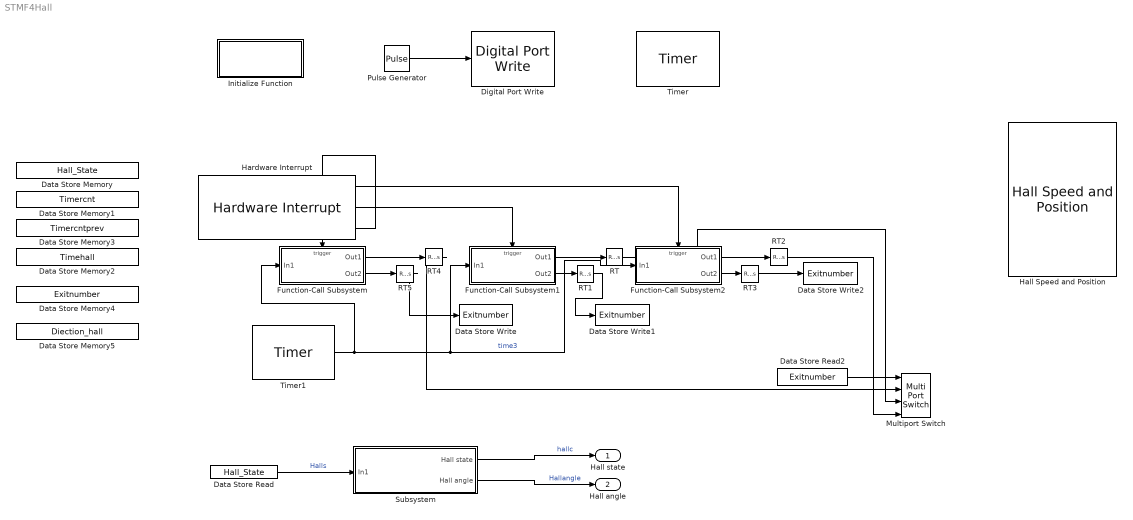
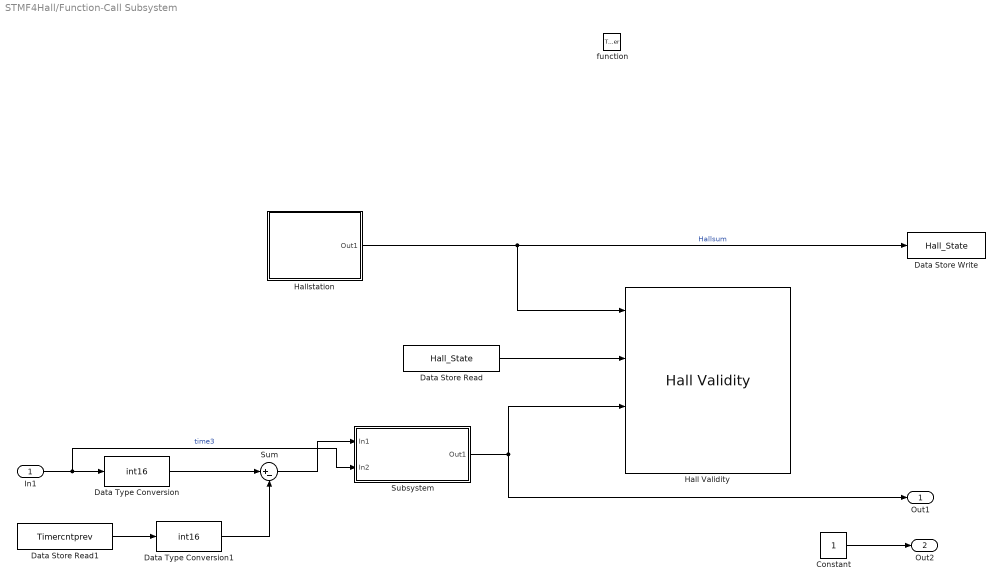
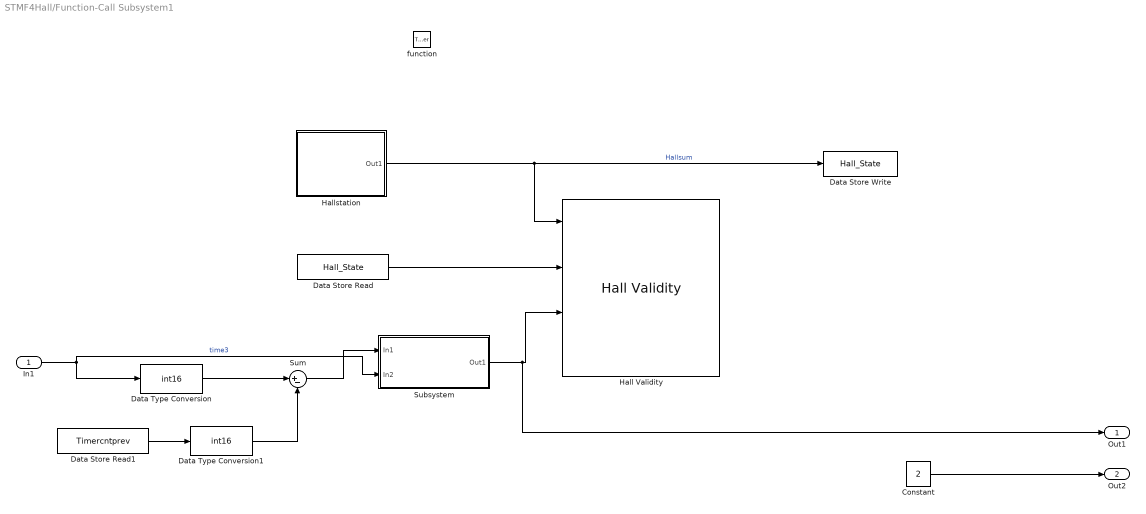
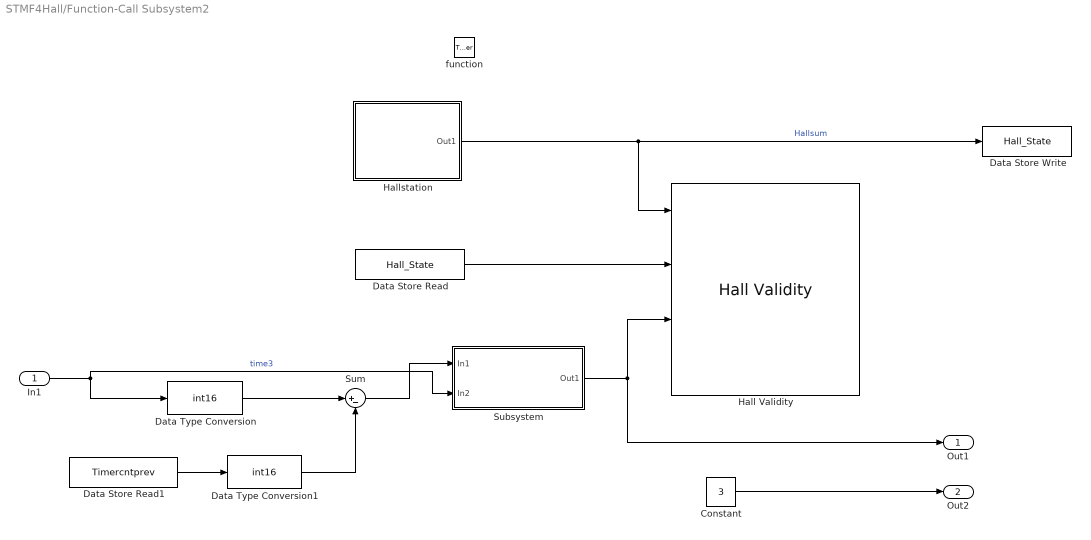
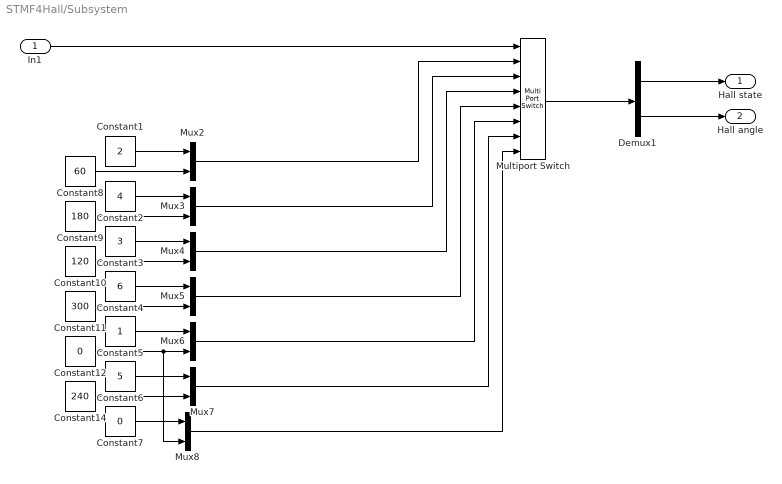
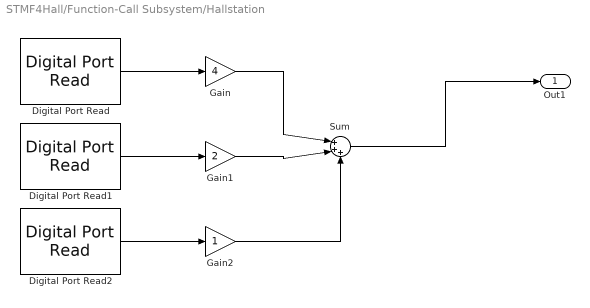
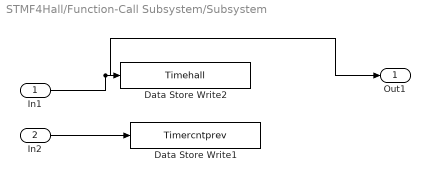
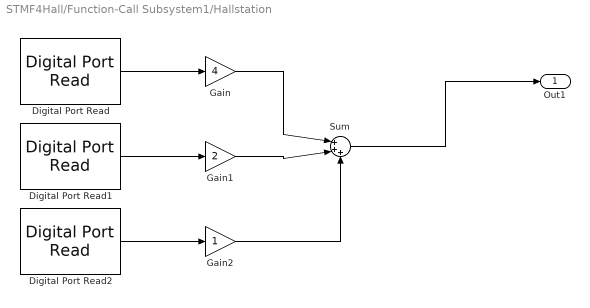
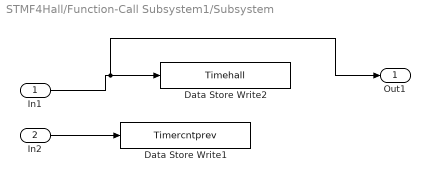
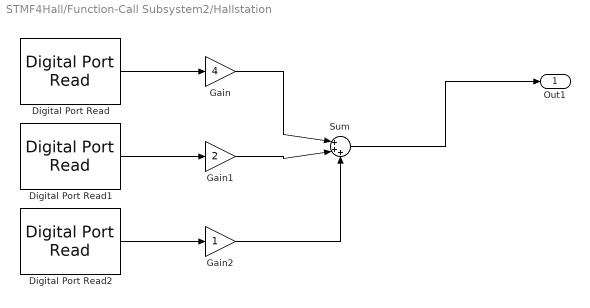
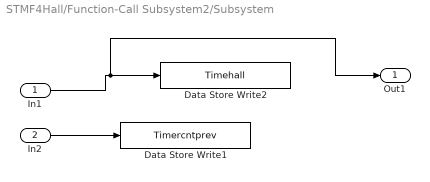
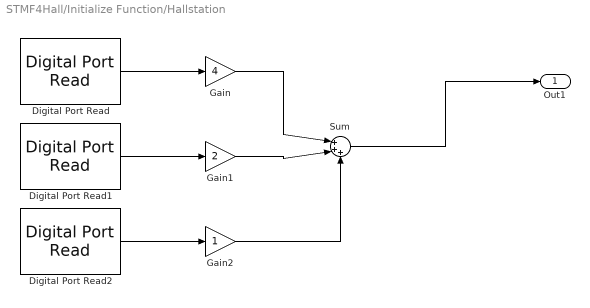
== system STMF4Hall/Initialize Function ==
  Data Store Write : DataStoreWrite  DataStoreName=Hall_State  IndexOptions=Index vector (dialog)  Indices=1  OutputSizes=1
  Event Listener : EventListener  DisableCoverage=on  EventName=reset
  Hallstation : Subsystem
  wires:
  Hallstation/1(Out1) -> Data Store Write/1

/*
 * File: STMF4Hall.c
 *
 * Code generated for Simulink model 'STMF4Hall'.
 *
 * Model version                  : 1.16
 * Simulink Coder version         : 24.1 (R2024a) 19-Nov-2023
 * C/C++ source code generated on : Mon Sep 30 14:28:23 2024
 *
 * Target selection: ert.tlc
 * Embedded hardware selection: ARM Compatible->ARM Cortex-M
 * Code generation objectives: Unspecified
 * Validation result: Not run
 */

#include "STMF4Hall.h"
#include "rtwtypes.h"
#include "STMF4Hall_types.h"
#include "STMF4Hall_private.h"
#include "stm_timer_ll.h"
#include "xcp.h"
#include "ext_mode.h"

extmodeSimulationTime_T currentTime = (extmodeSimulationTime_T) 0;

/* Block signals (default storage) */
B_STMF4Hall_T STMF4Hall_B;

/* Block states (default storage) */
DW_STMF4Hall_T STMF4Hall_DW;

/* External outputs (root outports fed by signals with default storage) */
ExtY_STMF4Hall_T STMF4Hall_Y;

/* Real-time model */
static RT_MODEL_STMF4Hall_T STMF4Hall_M_;
RT_MODEL_STMF4Hall_T *const STMF4Hall_M = &STMF4Hall_M_;

/* Forward declaration for local functions */
static void STMF4Hall_SystemCore_setup_o(stm32cube_blocks_TimerBlock_S_T *obj);
static void STMF4Hall_SystemCore_setup(stm32cube_blocks_TimerBlock_S_T *obj);
static void rate_monotonic_scheduler(void);

/*
 * Set which subrates need to run this base step (base rate always runs).
 * This function must be called prior to calling the model step function
 * in order to remember which rates need to run this base step.  The
 * buffering of events allows for overlapping preemption.
 */
void STMF4Hall_SetEventsForThisBaseStep(boolean_T *eventFlags)
{
  /* Task runs when its counter is zero, computed via rtmStepTask macro */
  eventFlags[1] = ((boolean_T)rtmStepTask(STMF4Hall_M, 1));
}

/*
 *         This function updates active task flag for each subrate
 *         and rate transition flags for tasks that exchange data.
 *         The function assumes rate-monotonic multitasking scheduler.
 *         The function must be called at model base rate so that
 *         the generated code self-manages all its subrates and rate
 *         transition flags.
 */
static void rate_monotonic_scheduler(void)
{
  /* Compute which subrates run during the next base time step.  Subrates
   * are an integer multiple of the base rate counter.  Therefore, the subtask
   * counter is reset when it reaches its limit (zero means run).
   */
  (STMF4Hall_M->Timing.TaskCounters.TID[1])++;
  if ((STMF4Hall_M->Timing.TaskCounters.TID[1]) > 1999) {/* Sample time: [0.1s, 0.0s] */
    STMF4Hall_M->Timing.TaskCounters.TID[1] = 0;
  }
}

/*
 * Output and update for action system:
 *    '<S104>/Hall Value of 1'
 *    '<S104>/Hall Value of 2'
 *    '<S104>/Hall Value of 3'
 *    '<S104>/Hall Value of 4'
 *    '<S104>/Hall Value of 5'
 *    '<S104>/Hall Value of 6'
 *    '<S104>/Hall Value of 7'
 *    '<S103>/Hall Value of 1'
 *    '<S103>/Hall Value of 2'
 *    '<S103>/Hall Value of 3'
 *    ...
 */
void STMF4Hall_HallValueof1(real32_T *rty_position, P_HallValueof1_STMF4Hall_T
  *localP)
{
  /* SignalConversion generated from: '<S114>/position' incorporates:
   *  Constant: '<S114>/Constant'
   */
  *rty_position = localP->Constant_Value;
}

/*
 * Output and update for action system:
 *    '<S66>/If Action Subsystem6'
 *    '<S66>/If Action Subsystem7'
 *    '<S41>/If Action Subsystem6'
 *    '<S41>/If Action Subsystem7'
 *    '<S16>/If Action Subsystem6'
 *    '<S16>/If Action Subsystem7'
 */
void STMF4Hal_IfActionSubsystem6(int16_T *rty_direction, uint16_T
  *rty_sequence_check, P_IfActionSubsystem6_STMF4Hal_T *localP)
{
  /* SignalConversion generated from: '<S73>/direction' incorporates:
   *  Constant: '<S73>/Constant'
   */
  *rty_direction = localP->Constant_Value;

  /* SignalConversion generated from: '<S73>/sequence_check' incorporates:
   *  Constant: '<S73>/Constant1'
   */
  *rty_sequence_check = localP->Constant1_Value;
}

/*
 * Output and update for action system:
 *    '<S66>/If Action Subsystem'
 *    '<S66>/If Action Subsystem1'
 *    '<S66>/If Action Subsystem2'
 *    '<S66>/If Action Subsystem3'
 *    '<S66>/If Action Subsystem4'
 *    '<S66>/If Action Subsystem5'
 *    '<S41>/If Action Subsystem'
 *    '<S41>/If Action Subsystem1'
 *    '<S41>/If Action Subsystem2'
 *    '<S41>/If Action Subsystem3'
 *    ...
 */
void STMF4Hall_IfActionSubsystem(uint16_T *rty_Out1, uint16_T *rty_Out2,
  P_IfActionSubsystem_STMF4Hall_T *localP)
{
  /* SignalConversion generated from: '<S67>/Out1' incorporates:
   *  Constant: '<S67>/previous'
   */
  *rty_Out1 = localP->previous_Value;

  /* SignalConversion generated from: '<S67>/Out2' incorporates:
   *  Constant: '<S67>/next'
   */
  *rty_Out2 = localP->next_Value;
}

/*
 * System initialize for action system:
 *    '<S64>/Valid Halls'
 *    '<S39>/Valid Halls'
 *    '<S14>/Valid Halls'
 */
void STMF4Hall_ValidHalls_Init(B_ValidHalls_STMF4Hall_T *localB,
  P_ValidHalls_STMF4Hall_T *localP)
{
  /* SystemInitialize for Merge: '<S66>/Merge' */
  localB->Merge = localP->Merge_InitialOutput;

  /* SystemInitialize for Merge: '<S66>/Merge1' */
  localB->Merge1 = localP->Merge1_InitialOutput;

  /* SystemInitialize for Merge: '<S66>/Merge2' */
  localB->Merge2 = localP->Merge2_InitialOutput;

  /* SystemInitialize for Merge: '<S66>/Merge3' */
  localB->Merge3 = localP->Merge3_InitialOutput;
}

/*
 * Output and update for action system:
 *    '<S64>/Valid Halls'
 *    '<S39>/Valid Halls'
 *    '<S14>/Valid Halls'
 */
void STMF4Hall_ValidHalls(uint16_T rtu_hallReading, uint16_T rtu_previousState,
  int16_T rtu_previous_direction, boolean_T *rty_directional_speed_valid_fla,
  int16_T *rty_direction, uint16_T *rty_inValidHall, B_ValidHalls_STMF4Hall_T
  *localB, DW_ValidHalls_STMF4Hall_T *localDW, P_ValidHalls_STMF4Hall_T *localP)
{
  /* SwitchCase: '<S66>/Switch Case' */
  switch (rtu_hallReading) {
   case 5:
    /* Outputs for IfAction SubSystem: '<S66>/If Action Subsystem' incorporates:
     *  ActionPort: '<S67>/Action Port'
     */
    STMF4Hall_IfActionSubsystem(&localB->Merge, &localB->Merge1,
      &localP->IfActionSubsystem);

    /* End of Outputs for SubSystem: '<S66>/If Action Subsystem' */
    break;

   case 4:
    /* Outputs for IfAction SubSystem: '<S66>/If Action Subsystem1' incorporates:
     *  ActionPort: '<S68>/Action Port'
     */
    STMF4Hall_IfActionSubsystem(&localB->Merge, &localB->Merge1,
      &localP->IfActionSubsystem1);

    /* End of Outputs for SubSystem: '<S66>/If Action Subsystem1' */
    break;

   case 6:
    /* Outputs for IfAction SubSystem: '<S66>/If Action Subsystem2' incorporates:
     *  ActionPort: '<S69>/Action Port'
     */
    STMF4Hall_IfActionSubsystem(&localB->Merge, &localB->Merge1,
      &localP->IfActionSubsystem2);

    /* End of Outputs for SubSystem: '<S66>/If Action Subsystem2' */
    break;

   case 2:
    /* Outputs for IfAction SubSystem: '<S66>/If Action Subsystem3' incorporates:
     *  ActionPort: '<S70>/Action Port'
     */
    STMF4Hall_IfActionSubsystem(&localB->Merge, &localB->Merge1,
      &localP->IfActionSubsystem3);

    /* End of Outputs for SubSystem: '<S66>/If Action Subsystem3' */
    break;

   case 3:
    /* Outputs for IfAction SubSystem: '<S66>/If Action Subsystem4' incorporates:
     *  ActionPort: '<S71>/Action Port'
     */
    STMF4Hall_IfActionSubsystem(&localB->Merge, &localB->Merge1,
      &localP->IfActionSubsystem4);

    /* End of Outputs for SubSystem: '<S66>/If Action Subsystem4' */
    break;

   case 1:
    /* Outputs for IfAction SubSystem: '<S66>/If Action Subsystem5' incorporates:
     *  ActionPort: '<S72>/Action Port'
     */
    STMF4Hall_IfActionSubsystem(&localB->Merge, &localB->Merge1,
      &localP->IfActionSubsystem5);

    /* End of Outputs for SubSystem: '<S66>/If Action Subsystem5' */
    break;

   default:
    /* Update for IfAction SubSystem: '<S66>/Switch Case Action Subsystem' incorporates:
     *  ActionPort: '<S76>/Action Port'
     */
    /* Update for SwitchCase: '<S66>/Switch Case' */
    localDW->SwitchCaseActionSubsystem_Subsy = 4;

    /* End of Update for SubSystem: '<S66>/Switch Case Action Subsystem' */
    break;
  }

  /* End of SwitchCase: '<S66>/Switch Case' */

  /* If: '<S66>/If' */
  if (rtu_previousState == localB->Merge) {
    /* Outputs for IfAction SubSystem: '<S66>/If Action Subsystem6' incorporates:
     *  ActionPort: '<S73>/Action Port'
     */
    STMF4Hal_IfActionSubsystem6(&localB->Merge2, &localB->Merge3,
      &localP->IfActionSubsystem6);

    /* End of Outputs for SubSystem: '<S66>/If Action Subsystem6' */
  } else if (rtu_previousState == localB->Merge1) {
    /* Outputs for IfAction SubSystem: '<S66>/If Action Subsystem7' incorporates:
     *  ActionPort: '<S74>/Action Port'
     */
    STMF4Hal_IfActionSubsystem6(&localB->Merge2, &localB->Merge3,
      &localP->IfActionSubsystem7);

    /* End of Outputs for SubSystem: '<S66>/If Action Subsystem7' */
  } else {
    /* Outputs for IfAction SubSystem: '<S66>/If Action Subsystem8' incorporates:
     *  ActionPort: '<S75>/Action Port'
     */
    /* Merge: '<S66>/Merge3' incorporates:
     *  Constant: '<S75>/Constant'
     *  SignalConversion generated from: '<S75>/sequence_check'
     */
    localB->Merge3 = localP->Constant_Value;

    /* End of Outputs for SubSystem: '<S66>/If Action Subsystem8' */

    /* Update for IfAction SubSystem: '<S66>/If Action Subsystem8' incorporates:
     *  ActionPort: '<S75>/Action Port'
     */
    /* Update for If: '<S66>/If' */
    localDW->IfActionSubsystem8_SubsysRanBC = 4;

    /* End of Update for SubSystem: '<S66>/If Action Subsystem8' */
  }

  /* End of If: '<S66>/If' */

  /* SignalConversion: '<S66>/Signal Conversion' */
  *rty_inValidHall = localB->Merge3;

  /* SignalConversion: '<S66>/Signal Conversion1' */
  *rty_direction = localB->Merge2;

  /* Switch: '<S66>/Switch' incorporates:
   *  Constant: '<S66>/Constant'
   *  RelationalOperator: '<S66>/Relational Operator'
   */
  if (localB->Merge3 != 0) {
    *rty_directional_speed_valid_fla = localP->Constant_Value_j;
  } else {
    *rty_directional_speed_valid_fla = (localB->Merge2 == rtu_previous_direction);
  }

  /* End of Switch: '<S66>/Switch' */
}

/*
 * Output and update for action system:
 *    '<S64>/Bad hall (glitch or wrong connection)'
 *    '<S39>/Bad hall (glitch or wrong connection)'
 *    '<S14>/Bad hall (glitch or wrong connection)'
 */
void Badhallglitchorwrongconnect(int16_T rtu_previous_direction, uint16_T
  *rty_inValidHall, int16_T *rty_direction, boolean_T
  *rty_directional_speed_valid_fla, P_Badhallglitchorwrongconnect_T *localP)
{
  /* SignalConversion generated from: '<S65>/inValidHall' incorporates:
   *  Constant: '<S65>/Constant'
   */
  *rty_inValidHall = localP->Constant_Value;

  /* SignalConversion: '<S65>/Signal Conversion' */
  *rty_direction = rtu_previous_direction;

  /* SignalConversion generated from: '<S65>/directional_speed_valid_flag' incorporates:
   *  Constant: '<S65>/Constant1'
   */
  *rty_directional_speed_valid_fla = localP->Constant1_Value;
}

static void STMF4Hall_SystemCore_setup_o(stm32cube_blocks_TimerBlock_S_T *obj)
{
  TIM_Type_T b;
  boolean_T isSlaveModeTriggerEnabled;

  /* Start for MATLABSystem: '<Root>/Timer1' */
  obj->isInitialized = 1;
  b.PeripheralPtr = TIM3;
  b.isCenterAlignedMode = false;

  /* Start for MATLABSystem: '<Root>/Timer1' */
  b.repetitionCounter = 0U;
  obj->TimerHandle = Timer_Handle_Init(&b);
  enableTimerInterrupts(obj->TimerHandle, 0);
  isSlaveModeTriggerEnabled = isSlaveTriggerModeEnabled(obj->TimerHandle);
  if (!isSlaveModeTriggerEnabled) {
    /* Start for MATLABSystem: '<Root>/Timer1' */
    enableCounter(obj->TimerHandle, false);
  }

  obj->isSetupComplete = true;
}

static void STMF4Hall_SystemCore_setup(stm32cube_blocks_TimerBlock_S_T *obj)
{
  TIM_Type_T b;
  boolean_T isSlaveModeTriggerEnabled;

  /* Start for MATLABSystem: '<Root>/Timer' */
  obj->isInitialized = 1;
  b.PeripheralPtr = TIM2;
  b.isCenterAlignedMode = false;

  /* Start for MATLABSystem: '<Root>/Timer' */
  b.repetitionCounter = 0U;
  obj->TimerHandle = Timer_Handle_Init(&b);
  enableTimerInterrupts(obj->TimerHandle, 0);
  isSlaveModeTriggerEnabled = isSlaveTriggerModeEnabled(obj->TimerHandle);
  if (!isSlaveModeTriggerEnabled) {
    /* Start for MATLABSystem: '<Root>/Timer' */
    enableCounter(obj->TimerHandle, false);
  }

  obj->isSetupComplete = true;
}

/* Model step function for TID0 */
void STMF4Hall_step0(void)             /* Sample time: [5.0E-5s, 0.0s] */
{
  real32_T rtb_Merge1;
  int16_T rtb_RT;
  int16_T rtb_RT4;
  uint16_T Switch;
  uint16_T tmp;
  boolean_T OR;

  {                                    /* Sample time: [5.0E-5s, 0.0s] */
    rate_monotonic_scheduler();
  }

  /* Reset subsysRan breadcrumbs */
  srClearBC(STMF4Hall_DW.IfActionSubsystem_SubsysRanBC);

  /* Reset subsysRan breadcrumbs */
  srClearBC(STMF4Hall_DW.IfActionSubsystem1_SubsysRanBC);

  /* Reset subsysRan breadcrumbs */
  srClearBC(STMF4Hall_DW.HallValueof1.HallValueof1_SubsysRanBC);

  /* Reset subsysRan breadcrumbs */
  srClearBC(STMF4Hall_DW.veDirection_SubsysRanBC_c);

  /* Reset subsysRan breadcrumbs */
  srClearBC(STMF4Hall_DW.veDirection_SubsysRanBC);

  /* Reset subsysRan breadcrumbs */
  srClearBC(STMF4Hall_DW.second_order_SubsysRanBC);

  /* Reset subsysRan breadcrumbs */
  srClearBC(STMF4Hall_DW.first_order_SubsysRanBC);

  /* Reset subsysRan breadcrumbs */
  srClearBC(STMF4Hall_DW.Subsystem1_SubsysRanBC);

  /* Reset subsysRan breadcrumbs */
  srClearBC(STMF4Hall_DW.SpeedanddirectionarevalidUsespe);

  /* Reset subsysRan breadcrumbs */
  srClearBC(STMF4Hall_DW.SpeedanddirectionarenotvalidPos);

  /* DataStoreRead: '<Root>/Data Store Read' */
  STMF4Hall_B.Halls = STMF4Hall_DW.Hall_State;

  /* MultiPortSwitch: '<S8>/Multiport Switch' */
  switch (STMF4Hall_B.Halls) {
   case 1:
    /* MultiPortSwitch: '<S8>/Multiport Switch' incorporates:
     *  Constant: '<S8>/Constant1'
     *  Constant: '<S8>/Constant8'
     */
    STMF4Hall_B.MultiportSwitch[0] = STMF4Hall_P.Constant1_Value;
    STMF4Hall_B.MultiportSwitch[1] = STMF4Hall_P.Constant8_Value;
    break;

   case 2:
    /* MultiPortSwitch: '<S8>/Multiport Switch' incorporates:
     *  Constant: '<S8>/Constant2'
     *  Constant: '<S8>/Constant9'
     */
    STMF4Hall_B.MultiportSwitch[0] = STMF4Hall_P.Constant2_Value;
    STMF4Hall_B.MultiportSwitch[1] = STMF4Hall_P.Constant9_Value;
    break;

   case 3:
    /* MultiPortSwitch: '<S8>/Multiport Switch' incorporates:
     *  Constant: '<S8>/Constant10'
     *  Constant: '<S8>/Constant3'
     */
    STMF4Hall_B.MultiportSwitch[0] = STMF4Hall_P.Constant3_Value;
    STMF4Hall_B.MultiportSwitch[1] = STMF4Hall_P.Constant10_Value;
    break;

   case 4:
    /* MultiPortSwitch: '<S8>/Multiport Switch' incorporates:
     *  Constant: '<S8>/Constant11'
     *  Constant: '<S8>/Constant4'
     */
    STMF4Hall_B.MultiportSwitch[0] = STMF4Hall_P.Constant4_Value;
    STMF4Hall_B.MultiportSwitch[1] = STMF4Hall_P.Constant11_Value;
    break;

   case 5:
    /* MultiPortSwitch: '<S8>/Multiport Switch' incorporates:
     *  Constant: '<S8>/Constant12'
     *  Constant: '<S8>/Constant5'
     */
    STMF4Hall_B.MultiportSwitch[0] = STMF4Hall_P.Constant5_Value;
    STMF4Hall_B.MultiportSwitch[1] = STMF4Hall_P.Constant12_Value;
    break;

   case 6:
    /* MultiPortSwitch: '<S8>/Multiport Switch' incorporates:
     *  Constant: '<S8>/Constant14'
     *  Constant: '<S8>/Constant6'
     */
    STMF4Hall_B.MultiportSwitch[0] = STMF4Hall_P.Constant6_Value;
    STMF4Hall_B.MultiportSwitch[1] = STMF4Hall_P.Constant14_Value;
    break;

   default:
    /* MultiPortSwitch: '<S8>/Multiport Switch' incorporates:
     *  Constant: '<S8>/Constant12'
     *  Constant: '<S8>/Constant7'
     */
    STMF4Hall_B.MultiportSwitch[0] = STMF4Hall_P.Constant7_Value;
    STMF4Hall_B.MultiportSwitch[1] = STMF4Hall_P.Constant12_Value;
    break;
  }

  /* End of MultiPortSwitch: '<S8>/Multiport Switch' */

  /* Outport: '<Root>/Hall state' */
  STMF4Hall_Y.Hallstate = STMF4Hall_B.MultiportSwitch[0];

  /* Outport: '<Root>/Hall angle' */
  STMF4Hall_Y.Hallangle = STMF4Hall_B.MultiportSwitch[1];

  /* RateTransition: '<Root>/RT4' */
  rtb_RT4 = STMF4Hall_B.Sum;

  /* RateTransition: '<Root>/RT' */
  rtb_RT = STMF4Hall_B.Sum_p;

  /* RateTransition: '<Root>/RT2' */
  STMF4Hall_B.gethalltimer = STMF4Hall_B.Sum_b;

  /* MultiPortSwitch: '<Root>/Multiport Switch' incorporates:
   *  RateTransition: '<Root>/RT3'
   */
  switch ((int32_T)STMF4Hall_B.OutportBufferForOut2_e2) {
   case 1:
    /* RateTransition: '<Root>/RT2' incorporates:
     *  MultiPortSwitch: '<Root>/Multiport Switch'
     */
    STMF4Hall_B.gethalltimer = rtb_RT4;
    break;

   case 2:
    /* RateTransition: '<Root>/RT2' incorporates:
     *  MultiPortSwitch: '<Root>/Multiport Switch'
     */
    STMF4Hall_B.gethalltimer = rtb_RT;
    break;
  }

  /* End of MultiPortSwitch: '<Root>/Multiport Switch' */
  /* MATLABSystem: '<Root>/Timer1' */
  STMF4Hall_B.time3_k = getTimerCounterValue(STMF4Hall_DW.obj.TimerHandle);

  /* RateTransition generated from: '<Root>/Function-Call Subsystem1' */
  STMF4Hall_DW.TmpRTBAtFunctionCallSubsystem1I = STMF4Hall_B.time3_k;

  /* RateTransition generated from: '<Root>/Function-Call Subsystem2' */
  STMF4Hall_DW.TmpRTBAtFunctionCallSubsystem2I = STMF4Hall_B.time3_k;

  /* RateTransition generated from: '<Root>/Function-Call Subsystem' */
  STMF4Hall_DW.time3_Buffer0 = STMF4Hall_B.time3_k;

  /* Switch: '<S86>/Switch' incorporates:
   *  Constant: '<S86>/Order'
   */
  if (STMF4Hall_P.Order_Value > STMF4Hall_P.Switch_Threshold) {
    /* Switch: '<S86>/Switch' */
    Switch = 0U;
  } else {
    /* Switch: '<S86>/Switch' */
    Switch = STMF4Hall_P.Order_Value;
  }

  /* End of Switch: '<S86>/Switch' */

  /* Delay: '<S86>/validityDelay' incorporates:
   *  Delay: '<S86>/speedCountDelay'
   */
  if (Switch != 0) {
    /* Delay: '<S86>/validityDelay' */
    STMF4Hall_B.validityDelay = STMF4Hall_DW.validityDelay_DSTATE;
  }

  /* End of Delay: '<S86>/validityDelay' */

  /* Logic: '<S87>/OR' incorporates:
   *  Delay: '<S87>/Delay One Step1'
   */
  OR = STMF4Hall_DW.DelayOneStep1_DSTATE;

  /* Delay: '<S87>/Delay One Step' incorporates:
   *  Delay: '<S87>/Delay One Step1'
   *  Logic: '<S87>/OR'
   */
  if (STMF4Hall_DW.DelayOneStep1_DSTATE) {
    /* Delay: '<S87>/Delay One Step' */
    STMF4Hall_B.DelayOneStep = STMF4Hall_DW.DelayOneStep_DSTATE;
  }

  /* End of Delay: '<S87>/Delay One Step' */

  /* RelationalOperator: '<S91>/Compare' incorporates:
   *  Constant: '<S91>/Constant'
   *  Delay: '<S87>/Delay One Step1'
   */
  STMF4Hall_DW.DelayOneStep1_DSTATE = (STMF4Hall_B.DelayOneStep >
    STMF4Hall_P.Constant_Value_np);

  /* Switch: '<S90>/watchdog check' incorporates:
   *  Constant: '<S90>/Constant'
   *  Delay: '<S87>/Delay One Step1'
   */
  if (STMF4Hall_DW.DelayOneStep1_DSTATE) {
    /* Switch: '<S90>/speed check' incorporates:
     *  Constant: '<S90>/Constant'
     *  Logic: '<S86>/Logical Operator'
     *  MinMax: '<S90>/Max'
     */
    if (STMF4Hall_P.speedcheck_Threshold <= 0U) {
      tmp = STMF4Hall_P.Constant_Value_m;
    } else {
      tmp = STMF4Hall_B.validityDelay;
    }

    /* End of Switch: '<S90>/speed check' */
  } else {
    tmp = STMF4Hall_P.Constant_Value_m;
  }

  /* If: '<S5>/If' incorporates:
   *  Constant: '<S89>/PositionEnable'
   *  Switch: '<S90>/watchdog check'
   */
  if (tmp != 0) {
    /* Outputs for IfAction SubSystem: '<S5>/Speed and direction are valid Use speed to extrapolate position' incorporates:
     *  ActionPort: '<S89>/Action Port'
     */
    /* Update for IfAction SubSystem: '<S89>/If Action Subsystem1' incorporates:
     *  ActionPort: '<S101>/Action Port'
     */
    /* Update for If: '<S89>/If' */
    srUpdateBC(STMF4Hall_DW.IfActionSubsystem1_SubsysRanBC);

    /* End of Update for SubSystem: '<S89>/If Action Subsystem1' */

    /* Outputs for Enabled SubSystem: '<S89>/Subsystem1' incorporates:
     *  EnablePort: '<S102>/Enable'
     */
    if (STMF4Hall_P.PositionEnable_Value > 0) {
      /* If: '<S102>/If1' incorporates:
       *  Constant: '<S102>/Constant'
       */
      if (STMF4Hall_P.Constant_Value > 1.0) {
        /* Update for IfAction SubSystem: '<S102>/second_order' incorporates:
         *  ActionPort: '<S106>/Action Port'
         */
        /* Update for If: '<S102>/If1' */
        srUpdateBC(STMF4Hall_DW.second_order_SubsysRanBC);

        /* End of Update for SubSystem: '<S102>/second_order' */
      } else {
        /* Update for IfAction SubSystem: '<S102>/first_order' incorporates:
         *  ActionPort: '<S105>/Action Port'
         */
        /* Update for If: '<S102>/If1' */
        srUpdateBC(STMF4Hall_DW.first_order_SubsysRanBC);

        /* End of Update for SubSystem: '<S102>/first_order' */
      }

      /* End of If: '<S102>/If1' */

      /* Outputs for IfAction SubSystem: '<S102>/-ve Direction' incorporates:
       *  ActionPort: '<S104>/Action Port'
       */
      /* Outputs for IfAction SubSystem: '<S104>/Hall Value of 7' incorporates:
       *  ActionPort: '<S120>/Action Port'
       */
      /* SwitchCase: '<S104>/Switch Case' incorporates:
       *  If: '<S102>/If'
       */
      STMF4Hall_HallValueof1(&rtb_Merge1, &STMF4Hall_P.HallValueof7);

      /* End of Outputs for SubSystem: '<S104>/Hall Value of 7' */
      /* End of Outputs for SubSystem: '<S102>/-ve Direction' */

      /* Update for IfAction SubSystem: '<S102>/-ve Direction' incorporates:
       *  ActionPort: '<S104>/Action Port'
       */
      /* Update for If: '<S102>/If' */
      srUpdateBC(STMF4Hall_DW.veDirection_SubsysRanBC_c);

      /* End of Update for SubSystem: '<S102>/-ve Direction' */
      srUpdateBC(STMF4Hall_DW.Subsystem1_SubsysRanBC);
    }

    /* End of Outputs for SubSystem: '<S89>/Subsystem1' */
    /* End of Outputs for SubSystem: '<S5>/Speed and direction are valid Use speed to extrapolate position' */

    /* Update for IfAction SubSystem: '<S5>/Speed and direction are valid Use speed to extrapolate position' incorporates:
     *  ActionPort: '<S89>/Action Port'
     */
    /* Update for If: '<S5>/If' incorporates:
     *  Constant: '<S89>/PositionEnable'
     */
    srUpdateBC(STMF4Hall_DW.SpeedanddirectionarevalidUsespe);

    /* End of Update for SubSystem: '<S5>/Speed and direction are valid Use speed to extrapolate position' */
  } else {
    /* Outputs for IfAction SubSystem: '<S5>/Speed and direction are not valid Position will be set to the middle of the Hall quadrant' incorporates:
     *  ActionPort: '<S88>/Action Port'
     */
    /* Outputs for IfAction SubSystem: '<S92>/Hall Value of 7' incorporates:
     *  ActionPort: '<S99>/Action Port'
     */
    /* SwitchCase: '<S92>/Switch Case' */
    STMF4Hall_HallValueof1(&rtb_Merge1, &STMF4Hall_P.HallValueof7_a);

    /* End of Outputs for SubSystem: '<S92>/Hall Value of 7' */
    /* End of Outputs for SubSystem: '<S5>/Speed and direction are not valid Position will be set to the middle of the Hall quadrant' */

    /* Update for IfAction SubSystem: '<S5>/Speed and direction are not valid Position will be set to the middle of the Hall quadrant' incorporates:
     *  ActionPort: '<S88>/Action Port'
     */
    /* Update for If: '<S5>/If' */
    srUpdateBC(STMF4Hall_DW.SpeedanddirectionarenotvalidPos);

    /* End of Update for SubSystem: '<S5>/Speed and direction are not valid Position will be set to the middle of the Hall quadrant' */
  }

  /* End of If: '<S5>/If' */

  /* MATLABSystem: '<Root>/Timer' */
  getTimerCounterValue(STMF4Hall_DW.obj_p.TimerHandle);

  /* Update for Delay: '<S86>/validityDelay' incorporates:
   *  DataTypeConversion: '<S86>/Data Type Conversion'
   *  Delay: '<S86>/speedCountDelay'
   */
  if (Switch != 0) {
    STMF4Hall_DW.validityDelay_DSTATE = false;
    STMF4Hall_DW.speedCountDelay_DSTATE = 0U;
  }

  /* End of Update for Delay: '<S86>/validityDelay' */

  /* Update for Delay: '<S87>/Delay One Step' incorporates:
   *  Constant: '<S87>/Constant2'
   *  Sum: '<S87>/Sum'
   */
  if (OR) {
    STMF4Hall_DW.DelayOneStep_DSTATE = (uint16_T)((uint32_T)
      STMF4Hall_B.DelayOneStep - STMF4Hall_P.Constant2_Value_m);
  }

  /* End of Update for Delay: '<S87>/Delay One Step' */

  /* Update absolute time */
  /* The "clockTick0" counts the number of times the code of this task has
   * been executed. The absolute time is the multiplication of "clockTick0"
   * and "Timing.stepSize0". Size of "clockTick0" ensures timer will not
   * overflow during the application lifespan selected.
   */
  STMF4Hall_M->Timing.taskTime0 =
    ((time_T)(++STMF4Hall_M->Timing.clockTick0)) * STMF4Hall_M->Timing.stepSize0;
}

/* Model step function for TID1 */
void STMF4Hall_step1(void)             /* Sample time: [0.1s, 0.0s] */
{
  GPIO_TypeDef * portNameLoc;
  real_T rtb_PulseGenerator;
  int32_T c;

  /* DiscretePulseGenerator: '<Root>/Pulse Generator' */
  rtb_PulseGenerator = (STMF4Hall_DW.clockTickCounter <
                        STMF4Hall_P.PulseGenerator_Duty) &&
    (STMF4Hall_DW.clockTickCounter >= 0) ? STMF4Hall_P.PulseGenerator_Amp : 0.0;
  if (STMF4Hall_DW.clockTickCounter >= STMF4Hall_P.PulseGenerator_Period - 1.0)
  {
    STMF4Hall_DW.clockTickCounter = 0;
  } else {
    STMF4Hall_DW.clockTickCounter++;
  }

  /* End of DiscretePulseGenerator: '<Root>/Pulse Generator' */

  /* MATLABSystem: '<S10>/Digital Port Write' */
  portNameLoc = GPIOA;
  if (rtb_PulseGenerator != 0.0) {
    c = 32;
  } else {
    c = 0;
  }

  LL_GPIO_SetOutputPin(portNameLoc, (uint32_T)c);
  LL_GPIO_ResetOutputPin(portNameLoc, ~(uint32_T)c & 32U);

  /* End of MATLABSystem: '<S10>/Digital Port Write' */

  /* Update absolute time */
  /* The "clockTick1" counts the number of times the code of this task has
   * been executed. The resolution of this integer timer is 0.1, which is the step size
   * of the task. Size of "clockTick1" ensures timer will not overflow during the
   * application lifespan selected.
   */
  STMF4Hall_M->Timing.clockTick1++;
}
